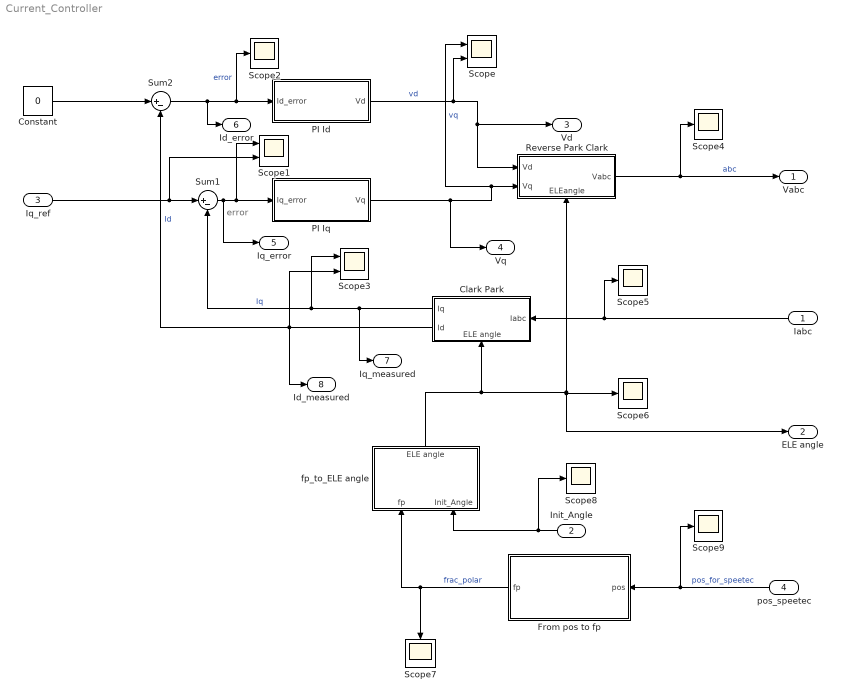
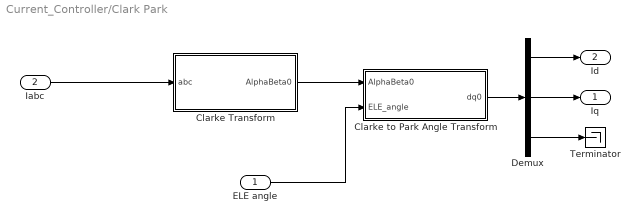
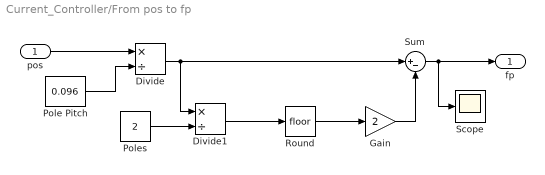
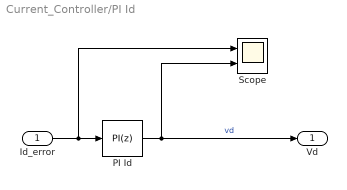
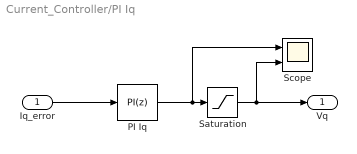
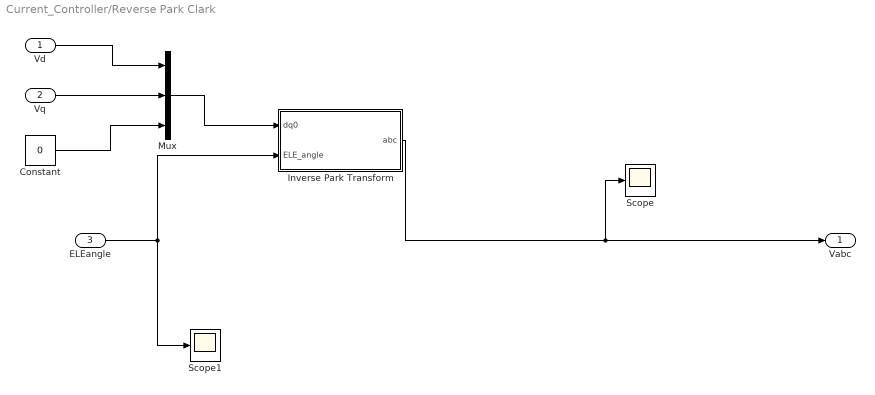
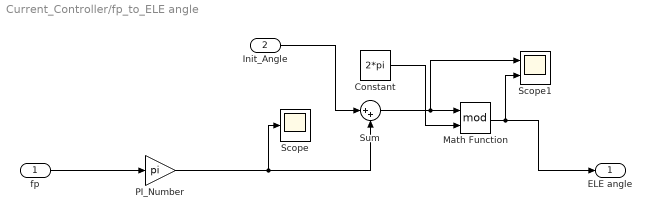
== matlab function Current_Controller/Clark Park/Clarke Transform ==
function AlphaBeta0 = fcn(abc)

M = [1,-1/2,-1/2;0,sqrt(3)/2,-sqrt(3)/2;1/2,1/2,1/2];

AlphaBeta0 = (2/3)*(M*abc);

== matlab function Current_Controller/Clark Park/Clarke to Park
Angle Transform ==
function dq0 = fcn(AlphaBeta0, ELE_angle)

M = [sin(ELE_angle),-cos(ELE_angle),0; cos(ELE_angle),sin(ELE_angle),0; 0,0,1];

dq0 = M*AlphaBeta0;

== matlab function Current_Controller/Reverse Park Clark/Inverse Park
Transform ==
function abc = fcn(dq0, ELE_angle)

M = [sin(ELE_angle),cos(ELE_angle),1; sin(ELE_angle-(2*pi/3)),cos(ELE_angle-(2*pi/3)),1; sin(ELE_angle+(2*pi/3)),cos(ELE_angle+(2*pi/3)),1];

abc = M*dq0;

end

//
// Academic License - for use in teaching, academic research, and meeting
// course requirements at degree granting institutions only.  Not for
// government, commercial, or other organizational use.
//
// File: Current_Controller.cpp
//
// Code generated for Simulink model 'Current_Controller'.
//
// Model version                  : 1.19
// Simulink Coder version         : 25.2 (R2025b) 28-Jul-2025
// C/C++ source code generated on : Wed Jun  3 13:06:34 2026
//
// Target selection: ert.tlc
// Embedded hardware selection: STMicroelectronics->ST10/Super10
// Code generation objectives:
//    1. Execution efficiency
//    2. RAM efficiency
// Validation result: Not run
//
#include "Current_Controller.h"
#include <array>
#include <cmath>
#include <stdint.h>
#include <cfloat>
#include <stdbool.h>

extern double rt_modd(double u0, double u1);
double rt_modd(double u0, double u1)
{
  double y;
  y = u0;
  if (u1 == 0.0) {
    if (u0 == 0.0) {
      y = u1;
    }
  } else if (u0 == 0.0) {
    y = 0.0 / u1;
  } else {
    bool yEq;
    y = std::fmod(u0, u1);
    yEq = (y == 0.0);
    if ((!yEq) && (u1 > std::floor(u1))) {
      double q;
      q = std::abs(u0 / u1);
      yEq = (std::abs(q - std::floor(q + 0.5)) <= DBL_EPSILON * q);
    }

    if (yEq) {
      y = 0.0;
    } else if ((u0 < 0.0) != (u1 < 0.0)) {
      y += u1;
    }
  }

  return y;
}

// Model step function
void Current_Controller::step(double arg_Iabc[3], double arg_Init_Angle, double
  arg_Iq_ref, double arg_pos_speetec, double arg_Vabc[3], double &arg_ELE_angle,
  double &arg_Vd, double &arg_Vq, double &arg_Iq_error, double &arg_Id_error,
  double &arg_Iq_measured, double &arg_Id_measured)
{
  std::array<double, 3> rtb_Sum_n_0;
  std::array<double, 9> rtb_dq0_tmp_1;
  double Integrator;
  double Integrator_p;
  double a_idx_1;
  double a_idx_2;
  double rtb_dq0_tmp;
  double rtb_dq0_tmp_0;
  double rtb_dq0_tmp_idx_2;
  double rtb_error;
  int16_t a_idx_2_tmp;
  int16_t i;
  static const std::array<double, 9> a{ { 1.0, 0.0, 0.5, -0.5,
      0.8660254037844386, 0.5, -0.5, -0.8660254037844386, 0.5 } };

  static const std::array<int8_t, 3> b{ { 0, 0, 1 } };

  // Product: '<S2>/Divide' incorporates:
  //   Constant: '<S2>/Pole Pitch'
  //   Inport: '<Root>/pos_speetec'

  rtb_error = arg_pos_speetec / 0.096;

  // Math: '<S6>/Math Function' incorporates:
  //   Constant: '<S2>/Poles'
  //   Constant: '<S6>/Constant'
  //   Gain: '<S2>/Gain'
  //   Gain: '<S6>/PI_Number'
  //   Inport: '<Root>/Init_Angle'
  //   Product: '<S2>/Divide1'
  //   Rounding: '<S2>/Round'
  //   Sum: '<S2>/Sum'
  //   Sum: '<S6>/Sum'

  arg_ELE_angle = rt_modd((rtb_error - std::floor(rtb_error / 2.0) * 2.0) *
    3.1415926535897931 + arg_Init_Angle, 6.2831853071795862);

  // MATLAB Function: '<S1>/Clarke to Park Angle Transform' incorporates:
  //   MATLAB Function: '<S5>/Inverse Park Transform'

  rtb_dq0_tmp = std::cos(arg_ELE_angle);
  rtb_dq0_tmp_0 = std::sin(arg_ELE_angle);

  // MATLAB Function: '<S1>/Clarke Transform'
  Integrator = 0.0;
  a_idx_1 = 0.0;
  a_idx_2 = 0.0;

  // MATLAB Function: '<S1>/Clarke to Park Angle Transform'
  rtb_dq0_tmp_1[0] = rtb_dq0_tmp_0;
  rtb_dq0_tmp_1[3] = -rtb_dq0_tmp;
  rtb_dq0_tmp_1[6] = 0.0;
  rtb_dq0_tmp_1[1] = rtb_dq0_tmp;
  rtb_dq0_tmp_1[4] = rtb_dq0_tmp_0;
  rtb_dq0_tmp_1[7] = 0.0;
  for (i = 0; i < 3; i++) {
    // MATLAB Function: '<S1>/Clarke Transform' incorporates:
    //   Inport: '<Root>/Iabc'
    //   MATLAB Function: '<S1>/Clarke to Park Angle Transform'

    rtb_error = arg_Iabc[i];
    Integrator += a[3 * i] * rtb_error;
    a_idx_1 += a[3 * i + 1] * rtb_error;
    a_idx_2_tmp = 3 * i + 2;
    a_idx_2 += a[a_idx_2_tmp] * rtb_error;

    // MATLAB Function: '<S1>/Clarke to Park Angle Transform'
    rtb_dq0_tmp_1[a_idx_2_tmp] = b[i];
  }

  // MATLAB Function: '<S1>/Clarke Transform'
  rtb_Sum_n_0[0] = 0.66666666666666663 * Integrator;

  // MATLAB Function: '<S1>/Clarke to Park Angle Transform'
  arg_Id_measured = 0.0;

  // MATLAB Function: '<S1>/Clarke Transform'
  rtb_Sum_n_0[1] = 0.66666666666666663 * a_idx_1;

  // MATLAB Function: '<S1>/Clarke to Park Angle Transform'
  arg_Iq_measured = 0.0;

  // MATLAB Function: '<S1>/Clarke Transform'
  rtb_Sum_n_0[2] = 0.66666666666666663 * a_idx_2;

  // MATLAB Function: '<S1>/Clarke to Park Angle Transform'
  for (i = 0; i < 3; i++) {
    rtb_error = rtb_Sum_n_0[i];
    arg_Id_measured += rtb_dq0_tmp_1[3 * i] * rtb_error;
    arg_Iq_measured += rtb_dq0_tmp_1[3 * i + 1] * rtb_error;
  }

  // DiscreteIntegrator: '<S44>/Integrator' incorporates:
  //   Constant: '<Root>/Constant'
  //   Gain: '<S41>/Integral Gain'
  //   MATLAB Function: '<S1>/Clarke to Park Angle Transform'
  //   Sum: '<Root>/Sum2'

  a_idx_2 = (0.0 - arg_Id_measured) * 1210.88664402243 * 0.0001;

  // DiscreteIntegrator: '<S44>/Integrator'
  Integrator = a_idx_2 + rtDW.Integrator_DSTATE;

  // Sum: '<S53>/Sum' incorporates:
  //   Constant: '<Root>/Constant'
  //   Gain: '<S49>/Proportional Gain'
  //   MATLAB Function: '<S1>/Clarke to Park Angle Transform'
  //   Sum: '<Root>/Sum2'

  arg_Vd = (0.0 - arg_Id_measured) * 10.5746062787963 + Integrator;

  // Sum: '<Root>/Sum1' incorporates:
  //   Inport: '<Root>/Iq_ref'
  //   MATLAB Function: '<S1>/Clarke to Park Angle Transform'

  arg_Iq_error = arg_Iq_ref - arg_Iq_measured;

  // DiscreteIntegrator: '<S97>/Integrator' incorporates:
  //   Gain: '<S94>/Integral Gain'

  a_idx_1 = 1486.22069601051 * arg_Iq_error * 0.0001;

  // DiscreteIntegrator: '<S97>/Integrator'
  Integrator_p = a_idx_1 + rtDW.Integrator_DSTATE_i;

  // Saturate: '<S4>/Saturation' incorporates:
  //   Gain: '<S102>/Proportional Gain'
  //   Sum: '<S106>/Sum'

  arg_Vq = std::fmax(12.1385417687129 * arg_Iq_error + Integrator_p, 0.0);

  // MATLAB Function: '<S5>/Inverse Park Transform' incorporates:
  //   Constant: '<S5>/Constant'
  //   SignalConversion generated from: '<S115>/ SFunction '

  rtb_dq0_tmp_1[0] = rtb_dq0_tmp_0;
  rtb_dq0_tmp_1[3] = rtb_dq0_tmp;
  rtb_dq0_tmp_1[6] = 1.0;
  rtb_dq0_tmp_1[1] = std::sin(arg_ELE_angle - 2.0943951023931953);
  rtb_dq0_tmp_1[4] = std::cos(arg_ELE_angle - 2.0943951023931953);
  rtb_dq0_tmp_1[7] = 1.0;
  rtb_dq0_tmp_1[2] = std::sin(arg_ELE_angle + 2.0943951023931953);
  rtb_dq0_tmp_1[5] = std::cos(arg_ELE_angle + 2.0943951023931953);
  rtb_dq0_tmp_1[8] = 1.0;
  rtb_Sum_n_0[0] = arg_Vd;
  rtb_Sum_n_0[1] = arg_Vq;
  rtb_Sum_n_0[2] = 0.0;
  rtb_dq0_tmp = 0.0;
  rtb_dq0_tmp_0 = 0.0;
  rtb_dq0_tmp_idx_2 = 0.0;
  for (i = 0; i < 3; i++) {
    rtb_error = rtb_Sum_n_0[i];
    rtb_dq0_tmp += rtb_dq0_tmp_1[3 * i] * rtb_error;
    rtb_dq0_tmp_0 += rtb_dq0_tmp_1[3 * i + 1] * rtb_error;
    rtb_dq0_tmp_idx_2 += rtb_dq0_tmp_1[3 * i + 2] * rtb_error;
  }

  // Outport: '<Root>/Vabc' incorporates:
  //   MATLAB Function: '<S5>/Inverse Park Transform'

  arg_Vabc[0] = rtb_dq0_tmp;
  arg_Vabc[1] = rtb_dq0_tmp_0;
  arg_Vabc[2] = rtb_dq0_tmp_idx_2;

  // Outport: '<Root>/Id_error' incorporates:
  //   Constant: '<Root>/Constant'
  //   MATLAB Function: '<S1>/Clarke to Park Angle Transform'
  //   Sum: '<Root>/Sum2'

  arg_Id_error = 0.0 - arg_Id_measured;

  // Update for DiscreteIntegrator: '<S44>/Integrator'
  rtDW.Integrator_DSTATE = a_idx_2 + Integrator;

  // Update for DiscreteIntegrator: '<S97>/Integrator'
  rtDW.Integrator_DSTATE_i = a_idx_1 + Integrator_p;
}
